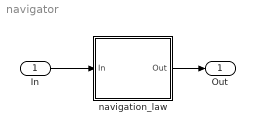
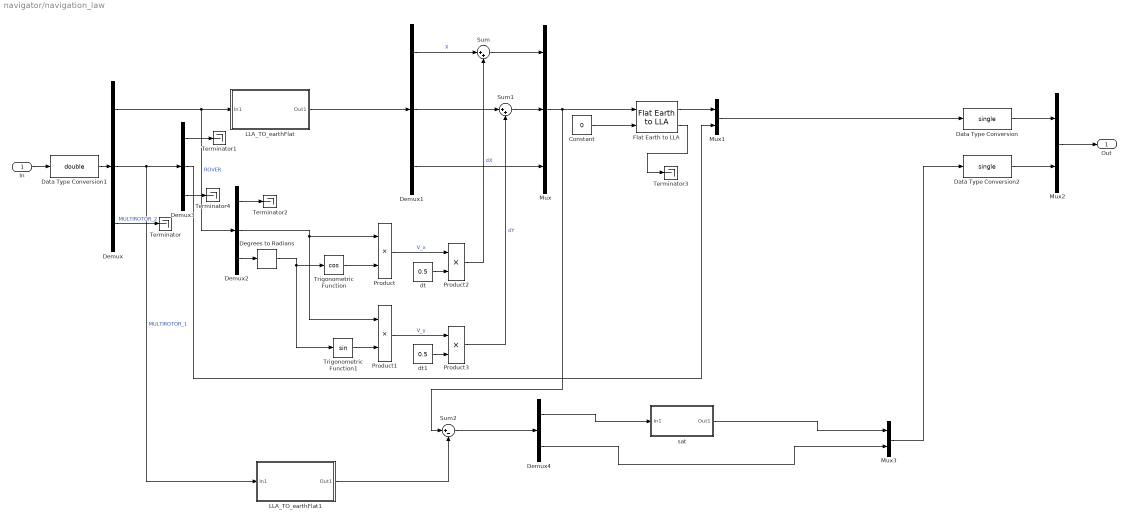
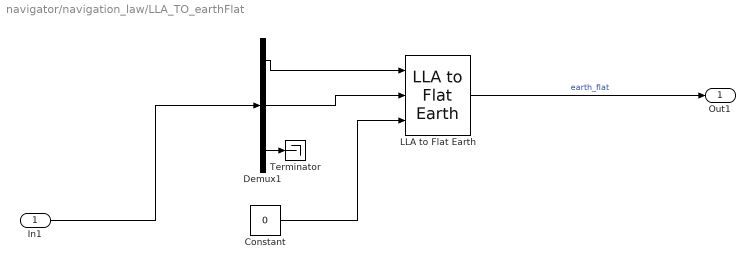
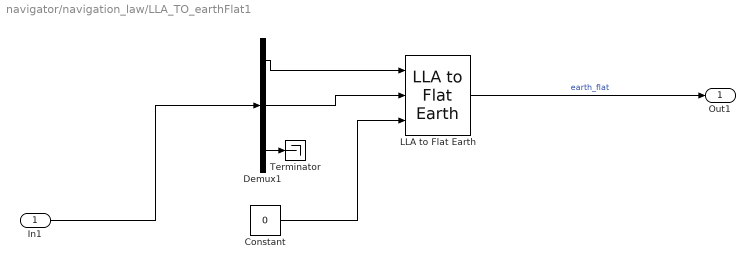
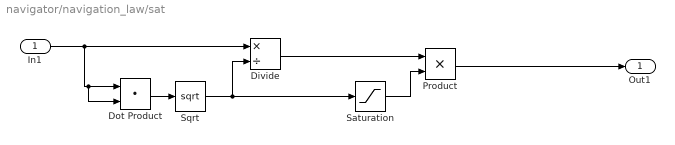
/*
 * File: navigator.cpp
 *
 * Code generated for Simulink model 'navigator'.
 *
 * Model version                  : 1.18
 * Simulink Coder version         : 8.5 (R2013b) 08-Aug-2013
 * C/C++ source code generated on : Wed Mar 18 16:57:44 2015
 *
 * Target selection: ert.tlc
 * Embedded hardware selection: Atmel->AVR
 * Code generation objectives:
 *    1. Execution efficiency
 *    2. Safety precaution
 *    3. ROM efficiency
 *    4. RAM efficiency
 * Validation result: Passed (11), Warnings (4), Error (1)
 */

#include "navigator.h"
#include "navigator_private.h"

/* External inputs (root inport signals with auto storage) */
ExtU_navigator_T navigator_U;

/* External outputs (root outports fed by signals with auto storage) */
ExtY_navigator_T navigator_Y;

/* Real-time model */
RT_MODEL_navigator_T navigator_M_;
RT_MODEL_navigator_T *const navigator_M = &navigator_M_;
real_T rt_roundd_snf(real_T u)
{
  real_T y;
  if (fabs(u) < 4.503599627370496E+15) {
    if (u >= 0.5) {
      y = floor(u + 0.5);
    } else if (u > -0.5) {
      y = u * 0.0;
    } else {
      y = ceil(u - 0.5);
    }
  } else {
    y = u;
  }

  return y;
}

real_T rt_remd_snf(real_T u0, real_T u1)
{
  real_T y;
  real_T u;
  if (u1 < 0.0) {
    u = ceil(u1);
  } else {
    u = floor(u1);
  }

  if ((u1 != 0.0) && (u1 != u) && ((!rtIsNaN(u0)) && (!rtIsInf(u0)) &&
       ((!rtIsNaN(u1)) && (!rtIsInf(u1))))) {
    u = u0 / u1;
    if (fabs(u - rt_roundd_snf(u)) <= DBL_EPSILON * fabs(u)) {
      y = 0.0;
    } else {
      y = fmod(u0, u1);
    }
  } else {
    y = fmod(u0, u1);
  }

  return y;
}

real_T rt_atan2d_snf(real_T u0, real_T u1)
{
  real_T y;
  int16_T u;
  int16_T u_0;
  if (rtIsNaN(u0) || rtIsNaN(u1)) {
    y = (rtNaN);
  } else if (rtIsInf(u0) && rtIsInf(u1)) {
    if (u0 > 0.0) {
      u = 1;
    } else {
      u = -1;
    }

    if (u1 > 0.0) {
      u_0 = 1;
    } else {
      u_0 = -1;
    }

    y = atan2((real_T)u, (real_T)u_0);
  } else if (u1 == 0.0) {
    if (u0 > 0.0) {
      y = RT_PI / 2.0;
    } else if (u0 < 0.0) {
      y = -(RT_PI / 2.0);
    } else {
      y = 0.0;
    }
  } else {
    y = atan2(u0, u1);
  }

  return y;
}

/* Model step function */
void navigator_step(void)
{
  real_T rtb_DataTypeConversion1[15];
  real_T rtb_SinCos_o2;
  real_T rtb_Px_l;
  real_T rtb_SinCos_o1;
  real_T rtb_Gain;
  real_T rtb_Pz;
  real_T rtb_Sum1_k;
  real_T rtb_Sum_o;
  real_T rtb_Sqrt;
  real_T rtb_Py_c;
  int16_T i;
  real32_T rtb_DataTypeConversion_idx;
  real32_T rtb_DataTypeConversion_idx_0;
  real_T rtb_Product_idx;
  real_T rtb_Product_idx_0;

  /* DataTypeConversion: '<S1>/Data Type Conversion1' incorporates:
   *  Inport: '<Root>/In'
   */
  for (i = 0; i < 15; i++) {
    rtb_DataTypeConversion1[i] = navigator_U.In[i];
  }

  /* End of DataTypeConversion: '<S1>/Data Type Conversion1' */

  /* Math: '<S18>/Math Function1' incorporates:
   *  Constant: '<S18>/Constant5'
   */
  rtb_SinCos_o2 = rt_remd_snf(rtb_DataTypeConversion1[0],
    navigator_P.Constant5_Value);

  /* Product: '<S18>/Product2' incorporates:
   *  Constant: '<S18>/Constant4'
   */
  rtb_Product_idx = rtb_SinCos_o2 / navigator_P.Constant4_Value;

  /* Rounding: '<S18>/Rounding Function1' */
  if (rtb_Product_idx < 0.0) {
    rtb_Product_idx = ceil(rtb_Product_idx);
  } else {
    rtb_Product_idx = floor(rtb_Product_idx);
  }

  /* Sum: '<S18>/Sum1' incorporates:
   *  Gain: '<S18>/Gain3'
   *  Rounding: '<S18>/Rounding Function1'
   */
  rtb_SinCos_o2 -= navigator_P.Gain3_Gain * rtb_Product_idx;

  /* Product: '<S18>/Product' incorporates:
   *  Constant: '<S18>/Constant1'
   */
  rtb_Px_l = rtb_SinCos_o2 / navigator_P.Constant1_Value;

  /* Rounding: '<S18>/Rounding Function' */
  if (rtb_Px_l < 0.0) {
    rtb_Product_idx = ceil(rtb_Px_l);
  } else {
    rtb_Product_idx = floor(rtb_Px_l);
  }

  /* Gain: '<S18>/Gain1' */
  rtb_Px_l *= navigator_P.Gain1_Gain;

  /* Product: '<S18>/Product1' */
  rtb_Px_l *= rtb_Px_l;

  /* Sqrt: '<S18>/sqrt' */
  rtb_Px_l = sqrt(rtb_Px_l);

  /* Rounding: '<S18>/Rounding Function2' */
  if (rtb_Px_l < 0.0) {
    rtb_Px_l = ceil(rtb_Px_l);
  } else {
    rtb_Px_l = floor(rtb_Px_l);
  }

  /* End of Rounding: '<S18>/Rounding Function2' */

  /* Gain: '<S18>/Gain2' */
  rtb_Px_l *= navigator_P.Gain2_Gain;

  /* Sum: '<S18>/Sum2' incorporates:
   *  Constant: '<S18>/Constant3'
   *  Gain: '<S18>/Gain'
   *  Math: '<S18>/Math Function2'
   *  Product: '<S18>/Product3'
   *  Rounding: '<S18>/Rounding Function'
   */
  rtb_SinCos_o2 = (rtb_SinCos_o2 - navigator_P.Gain_Gain * rtb_Product_idx) -
    rtb_Px_l * rt_remd_snf(rtb_SinCos_o2, navigator_P.Constant3_Value);

  /* Math: '<S19>/Math Function2' incorporates:
   *  Constant: '<S19>/Constant2'
   *  DataTypeConversion: '<S18>/Data Type Conversion'
   *  Gain: '<S18>/Gain4'
   *  Logic: '<S18>/Logical Operator1'
   *  Sum: '<S18>/Sum3'
   */
  rtb_SinCos_o1 = rt_remd_snf((real_T)(rtb_Px_l != 0.0) * navigator_P.Gain4_Gain
    + rtb_DataTypeConversion1[1], navigator_P.Constant2_Value);

  /* Product: '<S19>/Product' incorporates:
   *  Constant: '<S19>/Constant'
   */
  rtb_Product_idx = rtb_SinCos_o1 / navigator_P.Constant_Value;

  /* Rounding: '<S19>/Rounding Function' */
  if (rtb_Product_idx < 0.0) {
    rtb_Product_idx = ceil(rtb_Product_idx);
  } else {
    rtb_Product_idx = floor(rtb_Product_idx);
  }

  /* Sum: '<S19>/Sum2' incorporates:
   *  Gain: '<S19>/Gain'
   *  Rounding: '<S19>/Rounding Function'
   */
  rtb_SinCos_o1 -= navigator_P.Gain_Gain_h * rtb_Product_idx;

  /* Gain: '<S21>/Unit Conversion' incorporates:
   *  Constant: '<S17>/initial_pos'
   *  Sum: '<S17>/Sum1'
   */
  rtb_Product_idx = (rtb_SinCos_o2 - navigator_P.initial_pos_Value_l[0]) *
    navigator_P.UnitConversion_Gain;
  rtb_Product_idx_0 = (rtb_SinCos_o1 - navigator_P.initial_pos_Value_l[1]) *
    navigator_P.UnitConversion_Gain;

  /* Sum: '<S26>/Sum' incorporates:
   *  Constant: '<S26>/Constant'
   *  Constant: '<S26>/f'
   */
  rtb_SinCos_o1 = navigator_P.f_Value - navigator_P.Constant_Value_om;

  /* Sqrt: '<S27>/sqrt' incorporates:
   *  Constant: '<S27>/Constant'
   *  Product: '<S27>/Product1'
   *  Sum: '<S27>/Sum1'
   */
  rtb_SinCos_o1 = sqrt(navigator_P.Constant_Value_o - rtb_SinCos_o1 *
                       rtb_SinCos_o1);

  /* Gain: '<S24>/Unit Conversion' incorporates:
   *  Constant: '<S17>/initial_latg'
   */
  rtb_Px_l = navigator_P.UnitConversion_Gain_o * navigator_P.initial_latg_Value;

  /* Trigonometry: '<S25>/Trigonometric Function1' */
  rtb_SinCos_o2 = sin(rtb_Px_l);

  /* Sum: '<S25>/Sum1' incorporates:
   *  Constant: '<S25>/Constant'
   *  Product: '<S25>/Product1'
   */
  rtb_SinCos_o2 = navigator_P.Constant_Value_e - rtb_SinCos_o1 * rtb_SinCos_o1 *
    rtb_SinCos_o2 * rtb_SinCos_o2;

  /* Product: '<S22>/Product1' incorporates:
   *  Constant: '<S22>/Constant1'
   *  Sqrt: '<S22>/sqrt'
   */
  rtb_Pz = navigator_P.Constant1_Value_b / sqrt(rtb_SinCos_o2);

  /* Product: '<S20>/dNorth' incorporates:
   *  Constant: '<S22>/Constant'
   *  Constant: '<S22>/Constant2'
   *  Product: '<S22>/Product2'
   *  Product: '<S22>/Product3'
   *  Sum: '<S22>/Sum1'
   *  Trigonometry: '<S22>/Trigonometric Function1'
   */
  rtb_SinCos_o1 = rtb_Product_idx / rt_atan2d_snf(navigator_P.Constant2_Value_o,
    (navigator_P.Constant_Value_b - rtb_SinCos_o1 * rtb_SinCos_o1) * rtb_Pz /
    rtb_SinCos_o2);

  /* Gain: '<S23>/Unit Conversion' incorporates:
   *  Constant: '<S20>/ref_pos'
   */
  rtb_Gain = navigator_P.UnitConversion_Gain_b * navigator_P.ref_pos_Value;

  /* Trigonometry: '<S20>/SinCos' */
  rtb_SinCos_o2 = sin(rtb_Gain);
  rtb_Sum1_k = cos(rtb_Gain);

  /* Product: '<S20>/dEast' incorporates:
   *  Constant: '<S22>/Constant3'
   *  Product: '<S22>/Product4'
   *  Trigonometry: '<S22>/Trigonometric Function'
   *  Trigonometry: '<S22>/Trigonometric Function2'
   */
  rtb_Pz = 1.0 / rt_atan2d_snf(navigator_P.Constant3_Value_j, rtb_Pz * cos
    (rtb_Px_l)) * rtb_Product_idx_0;

  /* Gain: '<S2>/Gain1' */
  rtb_Px_l = navigator_P.Gain1_Gain_m * rtb_DataTypeConversion1[4];

  /* Sum: '<S1>/Sum' incorporates:
   *  Constant: '<S1>/dt'
   *  Product: '<S1>/Product'
   *  Product: '<S1>/Product2'
   *  Product: '<S20>/x*cos'
   *  Product: '<S20>/y*sin'
   *  Sum: '<S20>/Sum2'
   *  Trigonometry: '<S1>/Trigonometric Function'
   */
  rtb_Sum_o = (rtb_SinCos_o1 * rtb_Sum1_k + rtb_Pz * rtb_SinCos_o2) +
    rtb_DataTypeConversion1[3] * cos(rtb_Px_l) * navigator_P.dt_Value;

  /* Gain: '<S12>/Unit Conversion' incorporates:
   *  Constant: '<S8>/ref_pos'
   */
  rtb_Gain = navigator_P.UnitConversion_Gain_f * navigator_P.ref_pos_Value_n;

  /* Trigonometry: '<S8>/SinCos' */
  rtb_Py_c = sin(rtb_Gain);
  rtb_Sqrt = cos(rtb_Gain);

  /* Sum: '<S1>/Sum1' incorporates:
   *  Constant: '<S1>/dt1'
   *  Product: '<S1>/Product1'
   *  Product: '<S1>/Product3'
   *  Product: '<S20>/x*sin'
   *  Product: '<S20>/y*cos'
   *  Sum: '<S20>/Sum3'
   *  Trigonometry: '<S1>/Trigonometric Function1'
   */
  rtb_Sum1_k = (rtb_Pz * rtb_Sum1_k - rtb_SinCos_o1 * rtb_SinCos_o2) +
    rtb_DataTypeConversion1[3] * sin(rtb_Px_l) * navigator_P.dt1_Value;

  /* Sum: '<S15>/Sum' incorporates:
   *  Constant: '<S15>/Constant'
   *  Constant: '<S15>/f'
   */
  rtb_Pz = navigator_P.f_Value_b - navigator_P.Constant_Value_p;

  /* Sqrt: '<S16>/sqrt' incorporates:
   *  Constant: '<S16>/Constant'
   *  Product: '<S16>/Product1'
   *  Sum: '<S16>/Sum1'
   */
  rtb_Pz = sqrt(navigator_P.Constant_Value_kd - rtb_Pz * rtb_Pz);

  /* Gain: '<S13>/Unit Conversion' incorporates:
   *  Constant: '<S3>/initial_latg'
   */
  rtb_SinCos_o1 = navigator_P.UnitConversion_Gain_h *
    navigator_P.initial_latg_Value_n;

  /* Trigonometry: '<S14>/Trigonometric Function1' */
  rtb_Px_l = sin(rtb_SinCos_o1);

  /* Sum: '<S14>/Sum1' incorporates:
   *  Constant: '<S14>/Constant'
   *  Product: '<S14>/Product1'
   */
  rtb_Px_l = navigator_P.Constant_Value_k - rtb_Pz * rtb_Pz * rtb_Px_l *
    rtb_Px_l;

  /* Product: '<S11>/Product1' incorporates:
   *  Constant: '<S11>/Constant1'
   *  Sqrt: '<S11>/sqrt'
   */
  rtb_SinCos_o2 = navigator_P.Constant1_Value_f / sqrt(rtb_Px_l);

  /* Sum: '<S3>/Sum' incorporates:
   *  Constant: '<S11>/Constant3'
   *  Constant: '<S3>/initial_pos'
   *  Gain: '<S10>/Unit Conversion'
   *  Product: '<S11>/Product4'
   *  Product: '<S8>/rad long '
   *  Product: '<S8>/x*sin'
   *  Product: '<S8>/y*cos'
   *  Sum: '<S8>/Sum1'
   *  Trigonometry: '<S11>/Trigonometric Function'
   *  Trigonometry: '<S11>/Trigonometric Function2'
   */
  rtb_Product_idx_0 = (rtb_Sum_o * rtb_Py_c + rtb_Sum1_k * rtb_Sqrt) *
    rt_atan2d_snf(navigator_P.Constant3_Value_jt, rtb_SinCos_o2 * cos
                  (rtb_SinCos_o1)) * navigator_P.UnitConversion_Gain_g +
    navigator_P.initial_pos_Value[1];

  /* Math: '<S7>/Math Function1' incorporates:
   *  Constant: '<S11>/Constant'
   *  Constant: '<S11>/Constant2'
   *  Constant: '<S3>/initial_pos'
   *  Constant: '<S7>/Constant5'
   *  Gain: '<S10>/Unit Conversion'
   *  Product: '<S11>/Product2'
   *  Product: '<S11>/Product3'
   *  Product: '<S8>/rad lat'
   *  Product: '<S8>/x*cos'
   *  Product: '<S8>/y*sin'
   *  Sum: '<S11>/Sum1'
   *  Sum: '<S3>/Sum'
   *  Sum: '<S8>/Sum'
   *  Trigonometry: '<S11>/Trigonometric Function1'
   */
  rtb_Sqrt = rt_remd_snf(rt_atan2d_snf(navigator_P.Constant2_Value_f,
    (navigator_P.Constant_Value_c - rtb_Pz * rtb_Pz) * rtb_SinCos_o2 / rtb_Px_l)
    * (rtb_Sum_o * rtb_Sqrt - rtb_Sum1_k * rtb_Py_c) *
    navigator_P.UnitConversion_Gain_g + navigator_P.initial_pos_Value[0],
    navigator_P.Constant5_Value_e);

  /* Product: '<S7>/Product2' incorporates:
   *  Constant: '<S7>/Constant4'
   */
  rtb_Product_idx = rtb_Sqrt / navigator_P.Constant4_Value_g;

  /* Rounding: '<S7>/Rounding Function1' */
  if (rtb_Product_idx < 0.0) {
    rtb_Product_idx = ceil(rtb_Product_idx);
  } else {
    rtb_Product_idx = floor(rtb_Product_idx);
  }

  /* Sum: '<S7>/Sum1' incorporates:
   *  Gain: '<S7>/Gain3'
   *  Rounding: '<S7>/Rounding Function1'
   */
  rtb_Sqrt -= navigator_P.Gain3_Gain_l * rtb_Product_idx;

  /* Product: '<S7>/Product' incorporates:
   *  Constant: '<S7>/Constant1'
   */
  rtb_Py_c = rtb_Sqrt / navigator_P.Constant1_Value_g;

  /* Rounding: '<S7>/Rounding Function' */
  if (rtb_Py_c < 0.0) {
    rtb_Product_idx = ceil(rtb_Py_c);
  } else {
    rtb_Product_idx = floor(rtb_Py_c);
  }

  /* Gain: '<S7>/Gain1' */
  rtb_Py_c *= navigator_P.Gain1_Gain_d;

  /* Product: '<S7>/Product1' */
  rtb_Py_c *= rtb_Py_c;

  /* Sqrt: '<S7>/sqrt' */
  rtb_Py_c = sqrt(rtb_Py_c);

  /* Rounding: '<S7>/Rounding Function2' */
  if (rtb_Py_c < 0.0) {
    rtb_Py_c = ceil(rtb_Py_c);
  } else {
    rtb_Py_c = floor(rtb_Py_c);
  }

  /* End of Rounding: '<S7>/Rounding Function2' */

  /* Gain: '<S7>/Gain2' */
  rtb_Py_c *= navigator_P.Gain2_Gain_p;

  /* Sum: '<S7>/Sum2' incorporates:
   *  Constant: '<S7>/Constant3'
   *  Gain: '<S7>/Gain'
   *  Math: '<S7>/Math Function2'
   *  Product: '<S7>/Product3'
   *  Rounding: '<S7>/Rounding Function'
   */
  rtb_Sqrt = (rtb_Sqrt - navigator_P.Gain_Gain_c * rtb_Product_idx) - rtb_Py_c *
    rt_remd_snf(rtb_Sqrt, navigator_P.Constant3_Value_h);

  /* Math: '<S9>/Math Function2' incorporates:
   *  Constant: '<S9>/Constant2'
   *  DataTypeConversion: '<S7>/Data Type Conversion'
   *  Gain: '<S7>/Gain4'
   *  Logic: '<S7>/Logical Operator1'
   *  Sum: '<S7>/Sum3'
   */
  rtb_Py_c = rt_remd_snf((real_T)(rtb_Py_c != 0.0) * navigator_P.Gain4_Gain_j +
    rtb_Product_idx_0, navigator_P.Constant2_Value_e);

  /* Product: '<S9>/Product' incorporates:
   *  Constant: '<S9>/Constant'
   */
  rtb_Product_idx = rtb_Py_c / navigator_P.Constant_Value_d;

  /* Rounding: '<S9>/Rounding Function' */
  if (rtb_Product_idx < 0.0) {
    rtb_Product_idx = ceil(rtb_Product_idx);
  } else {
    rtb_Product_idx = floor(rtb_Product_idx);
  }

  /* Sum: '<S9>/Sum2' incorporates:
   *  Gain: '<S9>/Gain'
   *  Rounding: '<S9>/Rounding Function'
   */
  rtb_Py_c -= navigator_P.Gain_Gain_j * rtb_Product_idx;

  /* DataTypeConversion: '<S1>/Data Type Conversion' */
  rtb_DataTypeConversion_idx = (real32_T)rtb_Sqrt;
  rtb_DataTypeConversion_idx_0 = (real32_T)rtb_Py_c;

  /* Math: '<S29>/Math Function1' incorporates:
   *  Constant: '<S29>/Constant5'
   */
  rtb_Py_c = rt_remd_snf(rtb_DataTypeConversion1[5],
    navigator_P.Constant5_Value_b);

  /* Product: '<S29>/Product2' incorporates:
   *  Constant: '<S29>/Constant4'
   */
  rtb_Product_idx = rtb_Py_c / navigator_P.Constant4_Value_g4;

  /* Rounding: '<S29>/Rounding Function1' */
  if (rtb_Product_idx < 0.0) {
    rtb_Product_idx = ceil(rtb_Product_idx);
  } else {
    rtb_Product_idx = floor(rtb_Product_idx);
  }

  /* Sum: '<S29>/Sum1' incorporates:
   *  Gain: '<S29>/Gain3'
   *  Rounding: '<S29>/Rounding Function1'
   */
  rtb_Py_c -= navigator_P.Gain3_Gain_o * rtb_Product_idx;

  /* Product: '<S29>/Product' incorporates:
   *  Constant: '<S29>/Constant1'
   */
  rtb_Pz = rtb_Py_c / navigator_P.Constant1_Value_d;

  /* Rounding: '<S29>/Rounding Function' */
  if (rtb_Pz < 0.0) {
    rtb_Product_idx = ceil(rtb_Pz);
  } else {
    rtb_Product_idx = floor(rtb_Pz);
  }

  /* Gain: '<S29>/Gain1' */
  rtb_Pz *= navigator_P.Gain1_Gain_i;

  /* Product: '<S29>/Product1' */
  rtb_Pz *= rtb_Pz;

  /* Sqrt: '<S29>/sqrt' */
  rtb_Pz = sqrt(rtb_Pz);

  /* Rounding: '<S29>/Rounding Function2' */
  if (rtb_Pz < 0.0) {
    rtb_Pz = ceil(rtb_Pz);
  } else {
    rtb_Pz = floor(rtb_Pz);
  }

  /* End of Rounding: '<S29>/Rounding Function2' */

  /* Gain: '<S29>/Gain2' */
  rtb_Pz *= navigator_P.Gain2_Gain_k;

  /* Sum: '<S29>/Sum2' incorporates:
   *  Constant: '<S29>/Constant3'
   *  Gain: '<S29>/Gain'
   *  Math: '<S29>/Math Function2'
   *  Product: '<S29>/Product3'
   *  Rounding: '<S29>/Rounding Function'
   */
  rtb_Py_c = (rtb_Py_c - navigator_P.Gain_Gain_k * rtb_Product_idx) - rtb_Pz *
    rt_remd_snf(rtb_Py_c, navigator_P.Constant3_Value_c);

  /* Math: '<S30>/Math Function2' incorporates:
   *  Constant: '<S30>/Constant2'
   *  DataTypeConversion: '<S29>/Data Type Conversion'
   *  Gain: '<S29>/Gain4'
   *  Logic: '<S29>/Logical Operator1'
   *  Sum: '<S29>/Sum3'
   */
  rtb_Pz = rt_remd_snf((real_T)(rtb_Pz != 0.0) * navigator_P.Gain4_Gain_i +
                       rtb_DataTypeConversion1[6], navigator_P.Constant2_Value_h);

  /* Product: '<S30>/Product' incorporates:
   *  Constant: '<S30>/Constant'
   */
  rtb_Product_idx = rtb_Pz / navigator_P.Constant_Value_kc;

  /* Rounding: '<S30>/Rounding Function' */
  if (rtb_Product_idx < 0.0) {
    rtb_Product_idx = ceil(rtb_Product_idx);
  } else {
    rtb_Product_idx = floor(rtb_Product_idx);
  }

  /* Sum: '<S30>/Sum2' incorporates:
   *  Gain: '<S30>/Gain'
   *  Rounding: '<S30>/Rounding Function'
   */
  rtb_Pz -= navigator_P.Gain_Gain_kt * rtb_Product_idx;

  /* Gain: '<S32>/Unit Conversion' incorporates:
   *  Constant: '<S28>/initial_pos'
   *  Sum: '<S28>/Sum1'
   */
  rtb_Product_idx = (rtb_Py_c - navigator_P.initial_pos_Value_h[0]) *
    navigator_P.UnitConversion_Gain_gs;
  rtb_Product_idx_0 = (rtb_Pz - navigator_P.initial_pos_Value_h[1]) *
    navigator_P.UnitConversion_Gain_gs;

  /* Sum: '<S37>/Sum' incorporates:
   *  Constant: '<S37>/Constant'
   *  Constant: '<S37>/f'
   */
  rtb_Py_c = navigator_P.f_Value_j - navigator_P.Constant_Value_n;

  /* Sqrt: '<S38>/sqrt' incorporates:
   *  Constant: '<S38>/Constant'
   *  Product: '<S38>/Product1'
   *  Sum: '<S38>/Sum1'
   */
  rtb_Py_c = sqrt(navigator_P.Constant_Value_m - rtb_Py_c * rtb_Py_c);

  /* Gain: '<S35>/Unit Conversion' incorporates:
   *  Constant: '<S28>/initial_latg'
   */
  rtb_Pz = navigator_P.UnitConversion_Gain_i * navigator_P.initial_latg_Value_i;

  /* Trigonometry: '<S36>/Trigonometric Function1' */
  rtb_SinCos_o1 = sin(rtb_Pz);

  /* Sum: '<S36>/Sum1' incorporates:
   *  Constant: '<S36>/Constant'
   *  Product: '<S36>/Product1'
   */
  rtb_SinCos_o1 = navigator_P.Constant_Value_ks - rtb_Py_c * rtb_Py_c *
    rtb_SinCos_o1 * rtb_SinCos_o1;

  /* Product: '<S33>/Product1' incorporates:
   *  Constant: '<S33>/Constant1'
   *  Sqrt: '<S33>/sqrt'
   */
  rtb_Px_l = navigator_P.Constant1_Value_o / sqrt(rtb_SinCos_o1);

  /* Product: '<S31>/dNorth' incorporates:
   *  Constant: '<S33>/Constant'
   *  Constant: '<S33>/Constant2'
   *  Product: '<S33>/Product2'
   *  Product: '<S33>/Product3'
   *  Sum: '<S33>/Sum1'
   *  Trigonometry: '<S33>/Trigonometric Function1'
   */
  rtb_Py_c = rtb_Product_idx / rt_atan2d_snf(navigator_P.Constant2_Value_n,
    (navigator_P.Constant_Value_f - rtb_Py_c * rtb_Py_c) * rtb_Px_l /
    rtb_SinCos_o1);

  /* Gain: '<S34>/Unit Conversion' incorporates:
   *  Constant: '<S31>/ref_pos'
   */
  rtb_Gain = navigator_P.UnitConversion_Gain_c * navigator_P.ref_pos_Value_c;

  /* Trigonometry: '<S31>/SinCos' */
  rtb_SinCos_o1 = sin(rtb_Gain);
  rtb_SinCos_o2 = cos(rtb_Gain);

  /* Product: '<S31>/dEast' incorporates:
   *  Constant: '<S33>/Constant3'
   *  Product: '<S33>/Product4'
   *  Trigonometry: '<S33>/Trigonometric Function'
   *  Trigonometry: '<S33>/Trigonometric Function2'
   */
  rtb_Pz = 1.0 / rt_atan2d_snf(navigator_P.Constant3_Value_o, rtb_Px_l * cos
    (rtb_Pz)) * rtb_Product_idx_0;

  /* Sum: '<S1>/Sum2' incorporates:
   *  Product: '<S31>/x*cos'
   *  Product: '<S31>/x*sin'
   *  Product: '<S31>/y*cos'
   *  Product: '<S31>/y*sin'
   *  Sum: '<S31>/Sum2'
   *  Sum: '<S31>/Sum3'
   */
  rtb_Px_l = rtb_Sum_o - (rtb_Py_c * rtb_SinCos_o2 + rtb_Pz * rtb_SinCos_o1);
  rtb_Product_idx = rtb_Sum1_k - (rtb_Pz * rtb_SinCos_o2 - rtb_Py_c *
    rtb_SinCos_o1);

  /* Sqrt: '<S6>/Sqrt' incorporates:
   *  DotProduct: '<S6>/Dot Product'
   */
  rtb_Sqrt = sqrt(rtb_Px_l * rtb_Px_l + rtb_Product_idx * rtb_Product_idx);

  /* Saturate: '<S6>/Saturation' */
  if (rtb_Sqrt >= navigator_P.Saturation_UpperSat) {
    rtb_Gain = navigator_P.Saturation_UpperSat;
  } else if (rtb_Sqrt <= navigator_P.Saturation_LowerSat) {
    rtb_Gain = navigator_P.Saturation_LowerSat;
  } else {
    rtb_Gain = rtb_Sqrt;
  }

  /* End of Saturate: '<S6>/Saturation' */

  /* Outport: '<Root>/Out' incorporates:
   *  Constant: '<S4>/Constant'
   *  Constant: '<S5>/Constant'
   *  DataTypeConversion: '<S1>/Data Type Conversion'
   *  DataTypeConversion: '<S1>/Data Type Conversion2'
   *  Product: '<S6>/Divide'
   *  Product: '<S6>/Product'
   *  Sum: '<S17>/Sum'
   *  Sum: '<S1>/Sum2'
   *  Sum: '<S28>/Sum'
   *  UnaryMinus: '<S17>/Ze2height'
   *  UnaryMinus: '<S28>/Ze2height'
   */
  navigator_Y.Out[0] = rtb_DataTypeConversion_idx;
  navigator_Y.Out[1] = rtb_DataTypeConversion_idx_0;
  navigator_Y.Out[2] = (real32_T)rtb_DataTypeConversion1[7];
  navigator_Y.Out[3] = (real32_T)(rtb_Px_l / rtb_Sqrt * rtb_Gain);
  navigator_Y.Out[4] = (real32_T)(rtb_Product_idx / rtb_Sqrt * rtb_Gain);
  navigator_Y.Out[5] = (real32_T)(-(rtb_DataTypeConversion1[2] +
    navigator_P.Constant_Value_f1) - (-(rtb_DataTypeConversion1[7] +
    navigator_P.Constant_Value_kn)));
}
